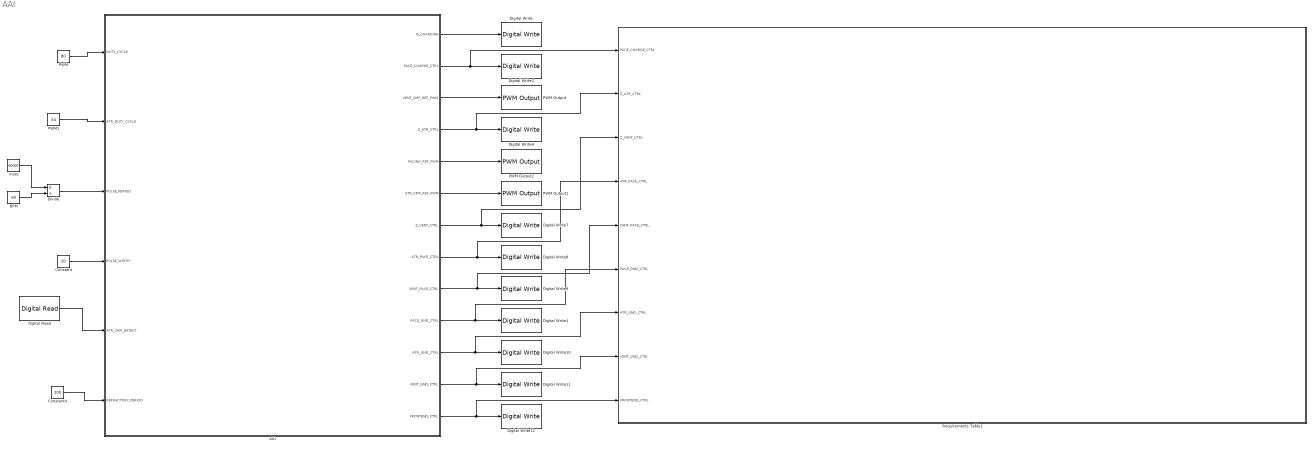
== stateflow chart AAI/Requirements Table1 ==
  (default) -> (junction 1073743086)
  (junction 1073743086) -> (junction 1073743087) : { % SF_REQ_REV_07 }
  (junction 1073743087) -> (junction 1073743089) : { % HEADER_ASSIGNMENTS  }
  (junction 1073743089) -> (junction 1073743091) : { % START_A_4 }
  (junction 1073743091) -> (junction 1073743093) : { }
  (junction 1073743093) -> (junction 1073743095)
  (junction 1073743095) -> (junction 1073743097) : { }
  (junction 1073743097) -> (junction 1073743099) : { % END_A_4 }
  (junction 1073743099) -> (junction 1073743101) : { % START_R_1 }
  (junction 1073743101) -> (junction 1073743103) : { }
  (junction 1073743103) -> (junction 1073743105) : {   }
  (junction 1073743105) -> (junction 1073743107) : { }
  (junction 1073743107) -> (junction 1073743109) : { % START_R_7 }
  (junction 1073743109) -> (junction 1073743111) : { }
  (junction 1073743111) -> (junction 1073743113)
  (junction 1073743113) -> (junction 1073743115) [order 1] : [(((prev(PACE_CHARGE_CTRL)) == (1))) && (((prev(Z_ATR_CTRL)) == (0))) && (((prev(Z_VENT_CTRL)) == (0))) && (((prev(ATR_PACE_CTRL)) == (0))) && (((prev(VENT_PACE_CTRL)) == (0))) && (((prev(PACE_GND_CTRL)) == (1))) && (((prev(ATR_GND_CTRL)) == (1))) && (((prev(VENT_GND_CTRL)) == (0))) && (((prev(FRONTEND_CTRL)) == (1)))]
  (junction 1073743113) -> (junction 1073743121) [order 2]
  (junction 1073743115) -> (junction 1073743117) : { reqtable_postcondition((((PACE_CHARGE_CTRL) == (1))) && (((Z_ATR_CTRL) == (0))) && (((Z_VENT_CTRL) == (0))) && (((ATR_PACE_CTRL) == (0))) && (((VENT_PACE_CTRL) == (0))) && (((PACE_GND_CTRL) == (1))) && (((ATR_GND_CTRL) == (1))) && (((VENT_GND_CTRL) == (0))) && (((FRONTEND_CTRL) == (1))), 'R:1.1');   }
  (junction 1073743117) -> (junction 1073743119) : { }
  (junction 1073743119) -> (junction 1073743121)
  (junction 1073743121) -> (junction 1073743123)
  (junction 1073743123) -> (junction 1073743125) : { % END_R_7 }
  (junction 1073743125) -> (junction 1073743170) : { % START_R_13 }
  (junction 1073743170) -> (junction 1073743172) : { }
  (junction 1073743172) -> (junction 1073743174)
  (junction 1073743174) -> (junction 1073743176) [order 1] : [(((prev(PACE_CHARGE_CTRL)) == (1))) && (((prev(Z_ATR_CTRL)) == (0))) && (((prev(Z_VENT_CTRL)) == (0))) && (((prev(ATR_PACE_CTRL)) == (0))) && (((prev(VENT_PACE_CTRL)) == (0))) && (((prev(PACE_GND_CTRL)) == (1))) && (((prev(ATR_GND_CTRL)) == (1))) && (((prev(VENT_GND_CTRL)) == (0))) && (((prev(FRONTEND_CTRL)) == (1)))]
  (junction 1073743174) -> (junction 1073743182) [order 2]
  (junction 1073743176) -> (junction 1073743178) : { reqtable_postcondition((((PACE_CHARGE_CTRL) == (1))) && (((Z_ATR_CTRL) == (0))) && (((Z_VENT_CTRL) == (0))) && (((ATR_PACE_CTRL) == (0))) && (((VENT_PACE_CTRL) == (0))) && (((PACE_GND_CTRL) == (1))) && (((ATR_GND_CTRL) == (1))) && (((VENT_GND_CTRL) == (0))) && (((FRONTEND_CTRL) == (1))), 'R:1.2');   }
  (junction 1073743178) -> (junction 1073743180) : { }
  (junction 1073743180) -> (junction 1073743182)
  (junction 1073743182) -> (junction 1073743184)
  (junction 1073743184) -> (junction 1073743186) : { % END_R_13 }
  (junction 1073743186) -> (junction 1073743127) : { % START_R_10 }
  (junction 1073743127) -> (junction 1073743129) : { }
  (junction 1073743129) -> (junction 1073743131)
  (junction 1073743131) -> (junction 1073743133) [order 1] : [(((prev(PACE_CHARGE_CTRL)) == (0))) && (((prev(Z_ATR_CTRL)) == (0))) && (((prev(Z_VENT_CTRL)) == (0))) && (((prev(ATR_PACE_CTRL)) == (1))) && (((prev(VENT_PACE_CTRL)) == (0))) && (((prev(PACE_GND_CTRL)) == (1))) && (((prev(ATR_GND_CTRL)) == (0))) && (((prev(VENT_GND_CTRL)) == (0))) && (((prev(FRONTEND_CTRL)) == (1)))]
  (junction 1073743131) -> (junction 1073743139) [order 2]
  (junction 1073743133) -> (junction 1073743135) : { reqtable_postcondition((((PACE_CHARGE_CTRL) == (0))) && (((Z_ATR_CTRL) == (0))) && (((Z_VENT_CTRL) == (0))) && (((ATR_PACE_CTRL) == (1))) && (((VENT_PACE_CTRL) == (0))) && (((PACE_GND_CTRL) == (1))) && (((ATR_GND_CTRL) == (0))) && (((VENT_GND_CTRL) == (0))) && (((FRONTEND_CTRL) == (1))), 'R:1.3');   }
  (junction 1073743135) -> (junction 1073743137) : { }
  (junction 1073743137) -> (junction 1073743139)
  (junction 1073743139) -> (junction 1073743141)
  (junction 1073743141) -> (junction 1073743161) : { % END_R_10 }
  (junction 1073743161) -> (junction 1073743163) : { % END_R_1 }
  data: PACE_CHARGE_CTRL input boolean; Z_ATR_CTRL input boolean; Z_VENT_CTRL input boolean; ATR_PACE_CTRL input boolean; VENT_PACE_CTRL input boolean; PACE_GND_CTRL input boolean; ATR_GND_CTRL input boolean; VENT_GND_CTRL input boolean; FRONTEND_CTRL input boolean =true

== stateflow chart AAI/AAI ==
  state Charging_C22
    entry:
    PACING_REF_PWM = DUTY_CYCLE
    PACE_CHARGE_CTRL = true
    PACE_GND_CTRL = true
    ATR_PACE_CTRL = false
    Z_ATR_CTRL = false
    Z_VENT_CTRL = false
    VENT_PACE_CTRL = false
    VENT_GND_CTRL = false
    ATR_GND_CTRL = true
    % For LED testing
    IS_CHARGING = true
    ATR_CMP_REF_PWM = ATR_DUTY_CYCLE
    FRONTEND_CTRL = true
  state Proxy
    entry:
    PACING_REF_PWM = DUTY_CYCLE
    PACE_CHARGE_CTRL = true
    PACE_GND_CTRL = true
    ATR_PACE_CTRL = false
    Z_ATR_CTRL = false
    Z_VENT_CTRL = false
    VENT_PACE_CTRL = false
    VENT_GND_CTRL = false
    ATR_GND_CTRL = true
    % For LED testing
    IS_CHARGING = true
    ATR_CMP_REF_PWM = ATR_DUTY_CYCLE
  state Pacing
    entry:
    PACE_CHARGE_CTRL = false
    PACE_GND_CTRL = true
    VENT_PACE_CTRL = false
    VENT_GND_CTRL = false
    Z_ATR_CTRL = false
    Z_VENT_CTRL = false
    ATR_GND_CTRL = false
    ATR_PACE_CTRL = true
    % For LED testing
    IS_CHARGING = false
  (default) -> Charging_C22
  Charging_C22 -> Proxy [order 1] : [ATR_CMP_DETECT ==  true]{DELAY = REFRACTORY_PERIOD}
  Proxy -> Charging_C22 : [after(DELAY,msec)]
  Charging_C22 -> Pacing [order 2] : [after(PULSE_PERIOD-REFRACTORY_PERIOD,msec)]
  Pacing -> Proxy : [after(PULSE_WIDTH,msec)]{DELAY = REFRACTORY_PERIOD - PULSE_WIDTH }
  data: IS_CHARGING output; PACE_CHARGE_CTRL output; VENT_CMP_REF_PWM output =0; Z_ATR_CTRL output; PACING_REF_PWM output; ATR_CMP_REF_PWM output =0; Z_VENT_CTRL output; ATR_PACE_CTRL output; VENT_PACE_CTRL output; PACE_GND_CTRL output; ATR_GND_CTRL output; VENT_GND_CTRL output; FRONTEND_CTRL output =true; DUTY_CYCLE input; ATR_DUTY_CYCLE input; PULSE_PERIOD input; PULSE_WIDTH input; ATR_CMP_DETECT input; DELAY local; REFRACTORY_PERIOD input

/*
 * Academic License - for use in teaching, academic research, and meeting
 * course requirements at degree granting institutions only.  Not for
 * government, commercial, or other organizational use.
 *
 * File: AAI.c
 *
 * Code generated for Simulink model 'AAI'.
 *
 * Model version                  : 1.36
 * Simulink Coder version         : 9.7 (R2022a) 13-Nov-2021
 * C/C++ source code generated on : Sun Oct 23 15:07:29 2022
 *
 * Target selection: ert.tlc
 * Embedded hardware selection: ARM Compatible->ARM Cortex
 * Code generation objectives: Unspecified
 * Validation result: Not run
 */

#include "AAI.h"
#include "rtwtypes.h"
#include <math.h>
#include "AAI_types.h"

/* Named constants for Chart: '<Root>/AAI' */
#define AAI_IN_Charging_C22            ((uint8_T)1U)
#define AAI_IN_Pacing                  ((uint8_T)2U)
#define AAI_IN_Proxy                   ((uint8_T)3U)

/* Block signals (default storage) */
B_AAI_T AAI_B;

/* Block states (default storage) */
DW_AAI_T AAI_DW;

/* Real-time model */
static RT_MODEL_AAI_T AAI_M_;
RT_MODEL_AAI_T *const AAI_M = &AAI_M_;

/* Forward declaration for local functions */
static void AAI_enter_atomic_Charging_C22(boolean_T *VENT_PACE_CTRL, boolean_T
  *ATR_PACE_CTRL, boolean_T *Z_VENT_CTRL, boolean_T *Z_ATR_CTRL, boolean_T
  *PACE_CHARGE_CTRL, boolean_T *VENT_GND_CTRL);
static void AAI_enter_atomic_Proxy(boolean_T *VENT_PACE_CTRL, boolean_T
  *ATR_PACE_CTRL, boolean_T *Z_VENT_CTRL, boolean_T *Z_ATR_CTRL, boolean_T
  *PACE_CHARGE_CTRL, boolean_T *VENT_GND_CTRL);

/* Function for Chart: '<Root>/AAI' */
static void AAI_enter_atomic_Charging_C22(boolean_T *VENT_PACE_CTRL, boolean_T
  *ATR_PACE_CTRL, boolean_T *Z_VENT_CTRL, boolean_T *Z_ATR_CTRL, boolean_T
  *PACE_CHARGE_CTRL, boolean_T *VENT_GND_CTRL)
{
  /* Constant: '<Root>/PWM' */
  AAI_B.PACING_REF_PWM = AAI_P.PWM_Value;
  *PACE_CHARGE_CTRL = true;
  AAI_B.PACE_GND_CTRL = true;
  *ATR_PACE_CTRL = false;
  *Z_ATR_CTRL = false;
  *Z_VENT_CTRL = false;
  *VENT_PACE_CTRL = false;
  *VENT_GND_CTRL = false;
  AAI_B.ATR_GND_CTRL = true;
  AAI_B.IS_CHARGING = true;

  /* Constant: '<Root>/PWM1' */
  AAI_B.ATR_CMP_REF_PWM = AAI_P.PWM1_Value;
  AAI_B.FRONTEND_CTRL = true;
}

/* Function for Chart: '<Root>/AAI' */
static void AAI_enter_atomic_Proxy(boolean_T *VENT_PACE_CTRL, boolean_T
  *ATR_PACE_CTRL, boolean_T *Z_VENT_CTRL, boolean_T *Z_ATR_CTRL, boolean_T
  *PACE_CHARGE_CTRL, boolean_T *VENT_GND_CTRL)
{
  /* Constant: '<Root>/PWM' */
  AAI_B.PACING_REF_PWM = AAI_P.PWM_Value;
  *PACE_CHARGE_CTRL = true;
  AAI_B.PACE_GND_CTRL = true;
  *ATR_PACE_CTRL = false;
  *Z_ATR_CTRL = false;
  *Z_VENT_CTRL = false;
  *VENT_PACE_CTRL = false;
  *VENT_GND_CTRL = false;
  AAI_B.ATR_GND_CTRL = true;
  AAI_B.IS_CHARGING = true;

  /* Constant: '<Root>/PWM1' */
  AAI_B.ATR_CMP_REF_PWM = AAI_P.PWM1_Value;
}

/* Model step function */
void AAI_step(void)
{
  boolean_T ATR_PACE_CTRL;
  boolean_T PACE_CHARGE_CTRL;
  boolean_T VENT_GND_CTRL;
  boolean_T VENT_PACE_CTRL;
  boolean_T Z_ATR_CTRL;
  boolean_T Z_VENT_CTRL;
  boolean_T tmp;

  /* MATLABSystem: '<Root>/Digital Read' */
  if (AAI_DW.obj.SampleTime != AAI_P.DigitalRead_SampleTime) {
    AAI_DW.obj.SampleTime = AAI_P.DigitalRead_SampleTime;
  }

  tmp = MW_digitalIO_read(AAI_DW.obj.MW_DIGITALIO_HANDLE);

  /* Chart: '<Root>/AAI' incorporates:
   *  Constant: '<Root>/BPM'
   *  Constant: '<Root>/Constant'
   *  Constant: '<Root>/Constant4'
   *  Constant: '<Root>/msec'
   *  MATLABSystem: '<Root>/Digital Read'
   *  Product: '<Root>/Divide'
   */
  if (AAI_DW.temporalCounter_i1 < MAX_uint32_T) {
    AAI_DW.temporalCounter_i1++;
  }

  if (AAI_DW.is_active_c3_AAI == 0U) {
    AAI_DW.is_active_c3_AAI = 1U;
    AAI_DW.is_c3_AAI = AAI_IN_Charging_C22;
    AAI_DW.temporalCounter_i1 = 0U;
    AAI_enter_atomic_Charging_C22(&VENT_PACE_CTRL, &ATR_PACE_CTRL, &Z_VENT_CTRL,
      &Z_ATR_CTRL, &PACE_CHARGE_CTRL, &VENT_GND_CTRL);
  } else {
    switch (AAI_DW.is_c3_AAI) {
     case AAI_IN_Charging_C22:
      PACE_CHARGE_CTRL = true;
      AAI_B.PACE_GND_CTRL = true;
      ATR_PACE_CTRL = false;
      Z_ATR_CTRL = false;
      Z_VENT_CTRL = false;
      VENT_PACE_CTRL = false;
      VENT_GND_CTRL = false;
      AAI_B.ATR_GND_CTRL = true;
      AAI_B.IS_CHARGING = true;
      AAI_B.FRONTEND_CTRL = true;
      if (tmp) {
        AAI_DW.DELAY = AAI_P.Constant4_Value;
        AAI_DW.is_c3_AAI = AAI_IN_Proxy;
        AAI_DW.temporalCounter_i1 = 0U;
        AAI_enter_atomic_Proxy(&VENT_PACE_CTRL, &ATR_PACE_CTRL, &Z_VENT_CTRL,
          &Z_ATR_CTRL, &PACE_CHARGE_CTRL, &VENT_GND_CTRL);
      } else if (AAI_DW.temporalCounter_i1 >= (uint32_T)ceil(AAI_P.msec_Value /
                  AAI_P.BPM_Value - AAI_P.Constant4_Value)) {
        AAI_DW.is_c3_AAI = AAI_IN_Pacing;
        AAI_DW.temporalCounter_i1 = 0U;
        PACE_CHARGE_CTRL = false;
        AAI_B.ATR_GND_CTRL = false;
        ATR_PACE_CTRL = true;
        AAI_B.IS_CHARGING = false;
      }
      break;

     case AAI_IN_Pacing:
      PACE_CHARGE_CTRL = false;
      AAI_B.PACE_GND_CTRL = true;
      VENT_PACE_CTRL = false;
      VENT_GND_CTRL = false;
      Z_ATR_CTRL = false;
      Z_VENT_CTRL = false;
      AAI_B.ATR_GND_CTRL = false;
      ATR_PACE_CTRL = true;
      AAI_B.IS_CHARGING = false;
      if (AAI_DW.temporalCounter_i1 >= (uint32_T)ceil(AAI_P.Constant_Value)) {
        AAI_DW.DELAY = AAI_P.Constant4_Value - AAI_P.Constant_Value;
        AAI_DW.is_c3_AAI = AAI_IN_Proxy;
        AAI_DW.temporalCounter_i1 = 0U;
        AAI_enter_atomic_Proxy(&VENT_PACE_CTRL, &ATR_PACE_CTRL, &Z_VENT_CTRL,
          &Z_ATR_CTRL, &PACE_CHARGE_CTRL, &VENT_GND_CTRL);
      }
      break;

     default:
      /* case IN_Proxy: */
      PACE_CHARGE_CTRL = true;
      AAI_B.PACE_GND_CTRL = true;
      ATR_PACE_CTRL = false;
      Z_ATR_CTRL = false;
      Z_VENT_CTRL = false;
      VENT_PACE_CTRL = false;
      VENT_GND_CTRL = false;
      AAI_B.ATR_GND_CTRL = true;
      AAI_B.IS_CHARGING = true;
      if (AAI_DW.temporalCounter_i1 >= (uint32_T)ceil(AAI_DW.DELAY)) {
        AAI_DW.is_c3_AAI = AAI_IN_Charging_C22;
        AAI_DW.temporalCounter_i1 = 0U;
        AAI_enter_atomic_Charging_C22(&VENT_PACE_CTRL, &ATR_PACE_CTRL,
          &Z_VENT_CTRL, &Z_ATR_CTRL, &PACE_CHARGE_CTRL, &VENT_GND_CTRL);
      }
      break;
    }
  }

  /* End of Chart: '<Root>/AAI' */

  /* MATLABSystem: '<Root>/Digital Write' */
  MW_digitalIO_write(AAI_DW.obj_hb.MW_DIGITALIO_HANDLE, AAI_B.IS_CHARGING);

  /* MATLABSystem: '<Root>/Digital Write1' */
  MW_digitalIO_write(AAI_DW.obj_m.MW_DIGITALIO_HANDLE, AAI_B.PACE_GND_CTRL);

  /* MATLABSystem: '<Root>/Digital Write10' */
  MW_digitalIO_write(AAI_DW.obj_ii.MW_DIGITALIO_HANDLE, AAI_B.ATR_GND_CTRL);

  /* MATLABSystem: '<Root>/Digital Write11' */
  MW_digitalIO_write(AAI_DW.obj_nv.MW_DIGITALIO_HANDLE, VENT_GND_CTRL);

  /* MATLABSystem: '<Root>/Digital Write12' */
  MW_digitalIO_write(AAI_DW.obj_l.MW_DIGITALIO_HANDLE, AAI_B.FRONTEND_CTRL);

  /* MATLABSystem: '<Root>/Digital Write2' */
  MW_digitalIO_write(AAI_DW.obj_h.MW_DIGITALIO_HANDLE, PACE_CHARGE_CTRL);

  /* MATLABSystem: '<Root>/Digital Write4' */
  MW_digitalIO_write(AAI_DW.obj_b.MW_DIGITALIO_HANDLE, Z_ATR_CTRL);

  /* MATLABSystem: '<Root>/Digital Write7' */
  MW_digitalIO_write(AAI_DW.obj_i.MW_DIGITALIO_HANDLE, Z_VENT_CTRL);

  /* MATLABSystem: '<Root>/Digital Write8' */
  MW_digitalIO_write(AAI_DW.obj_n.MW_DIGITALIO_HANDLE, ATR_PACE_CTRL);

  /* MATLABSystem: '<Root>/Digital Write9' */
  MW_digitalIO_write(AAI_DW.obj_j.MW_DIGITALIO_HANDLE, VENT_PACE_CTRL);

  /* MATLABSystem: '<Root>/PWM Output' */
  MW_PWM_SetDutyCycle(AAI_DW.obj_d.MW_PWM_HANDLE, AAI_B.VENT_CMP_REF_PWM);

  /* MATLABSystem: '<Root>/PWM Output1' */
  MW_PWM_SetDutyCycle(AAI_DW.obj_bs.MW_PWM_HANDLE, AAI_B.ATR_CMP_REF_PWM);

  /* MATLABSystem: '<Root>/PWM Output2' */
  MW_PWM_SetDutyCycle(AAI_DW.obj_a.MW_PWM_HANDLE, AAI_B.PACING_REF_PWM);

  /* Requirements Table: '<Root>/Requirements Table1' */
  AAI_DW.doneDoubleBufferReInit = true;

  /*  SF_REQ_REV_07 */
  /*  HEADER_ASSIGNMENTS */
  /*  START_A_4 */
  /*  END_A_4 */
  /*  START_R_1 */
  /*  START_R_7 */
  /*  END_R_7 */
  /*  START_R_13 */
  /*  END_R_13 */
  /*  START_R_10 */
  /*  END_R_10 */
  /*  END_R_1 */
}
